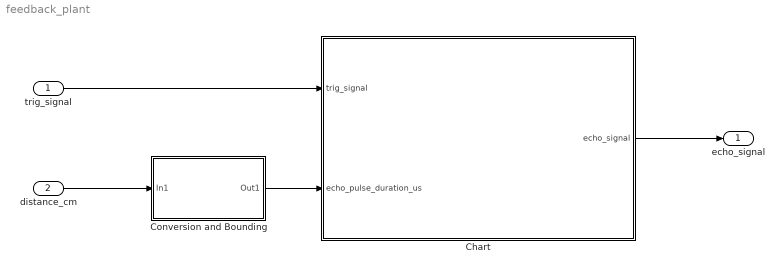
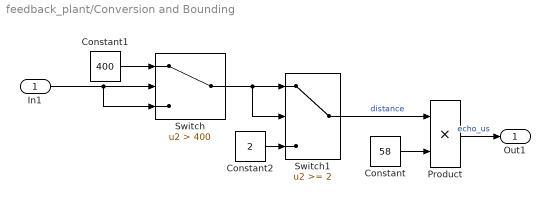
== stateflow chart feedback_plant/Chart ==
  state WAIT_TO_RISE
  state WAIT_TO_FALL
  state RESPONS_ECHO_SIGNAL
    entry:
    echo_signal = true;
    exit:
    echo_signal = false;
  (default) -> WAIT_TO_RISE
  (junction 16) -> WAIT_TO_RISE
  (junction 22) -> (junction 16)
  WAIT_TO_RISE -> WAIT_TO_FALL : [trig_signal == true]
  WAIT_TO_FALL -> (junction 22) [order 1] : [trig_signal == false]
  (junction 14) -> (junction 22)
  WAIT_TO_FALL -> RESPONS_ECHO_SIGNAL [order 2] : [after(10,usec)]
  RESPONS_ECHO_SIGNAL -> (junction 14) : after(echo_pulse_duration_us, usec)
  data: trig_signal input boolean; echo_pulse_duration_us input double; echo_signal output boolean

/*
 * Academic License - for use in teaching, academic research, and meeting
 * course requirements at degree granting institutions only.  Not for
 * government, commercial, or other organizational use.
 *
 * File: feedback_plant.c
 *
 * Code generated for Simulink model 'feedback_plant'.
 *
 * Model version                  : 10.19
 * Simulink Coder version         : 9.4 (R2020b) 29-Jul-2020
 * C/C++ source code generated on : Sat Jun 19 12:11:53 2021
 *
 * Target selection: ert.tlc
 * Embedded hardware selection: ARM Compatible->ARM Cortex-M
 * Code generation objectives: Unspecified
 * Validation result: Not run
 */

#include "feedback_plant.h"

/* Named constants for Chart: '<Root>/Chart' */
#define feedback_IN_RESPONS_ECHO_SIGNAL ((uint8_T)1U)
#define feedback_pla_IN_NO_ACTIVE_CHILD ((uint8_T)0U)
#define feedback_plant_IN_WAIT_TO_FALL ((uint8_T)2U)
#define feedback_plant_IN_WAIT_TO_RISE ((uint8_T)3U)

/*===========*
 * Constants *
 *===========*/
#define RT_PI                          3.14159265358979323846
#define RT_PIF                         3.1415927F
#define RT_LN_10                       2.30258509299404568402
#define RT_LN_10F                      2.3025851F
#define RT_LOG10E                      0.43429448190325182765
#define RT_LOG10EF                     0.43429449F
#define RT_E                           2.7182818284590452354
#define RT_EF                          2.7182817F

/*
 * UNUSED_PARAMETER(x)
 *   Used to specify that a function parameter (argument) is required but not
 *   accessed by the function body.
 */
#ifndef UNUSED_PARAMETER
#if defined(__LCC__)
#define UNUSED_PARAMETER(x)                                      /* do nothing */
#else

/*
 * This is the semi-ANSI standard way of indicating that an
 * unused function parameter is required.
 */
#define UNUSED_PARAMETER(x)            (void) (x)
#endif
#endif

/* Model step function */
void feedback_plant_step(RT_MODEL_feedback_plant_T *const feedback_plant_M,
  boolean_T feedback_plant_U_trig_signal, real_T feedback_plant_U_distance_cm,
  boolean_T *feedback_plant_Y_echo_signal)
{
  DW_feedback_plant_T *feedback_plant_DW = feedback_plant_M->dwork;
  real_T rtb_distance;

  /* Switch: '<S2>/Switch' incorporates:
   *  Constant: '<S2>/Constant1'
   *  Inport: '<Root>/distance_cm'
   */
  if (feedback_plant_U_distance_cm > 400.0) {
    rtb_distance = 400.0;
  } else {
    rtb_distance = feedback_plant_U_distance_cm;
  }

  /* End of Switch: '<S2>/Switch' */

  /* Switch: '<S2>/Switch1' incorporates:
   *  Constant: '<S2>/Constant2'
   */
  if (!(rtb_distance >= 2.0)) {
    rtb_distance = 2.0;
  }

  /* End of Switch: '<S2>/Switch1' */

  /* Chart: '<Root>/Chart' incorporates:
   *  Constant: '<S2>/Constant'
   *  Inport: '<Root>/trig_signal'
   *  Product: '<S2>/Product'
   */
  if (feedback_plant_DW->temporalCounter_i1 < MAX_uint32_T) {
    feedback_plant_DW->temporalCounter_i1++;
  }

  if (feedback_plant_DW->is_active_c3_feedback_plant == 0U) {
    feedback_plant_DW->is_active_c3_feedback_plant = 1U;
    feedback_plant_DW->is_c3_feedback_plant = feedback_plant_IN_WAIT_TO_RISE;
  } else {
    switch (feedback_plant_DW->is_c3_feedback_plant) {
     case feedback_IN_RESPONS_ECHO_SIGNAL:
      if ((uint32_T)((int32_T)feedback_plant_DW->temporalCounter_i1 * 10) >=
          (uint32_T)ceil(rtb_distance * 58.0)) {
        /* Outport: '<Root>/echo_signal' */
        *feedback_plant_Y_echo_signal = false;
        feedback_plant_DW->is_c3_feedback_plant = feedback_plant_IN_WAIT_TO_RISE;
      }
      break;

     case feedback_plant_IN_WAIT_TO_FALL:
      if (!feedback_plant_U_trig_signal) {
        feedback_plant_DW->is_c3_feedback_plant = feedback_plant_IN_WAIT_TO_RISE;
      } else {
        if (feedback_plant_DW->temporalCounter_i1 >= 1U) {
          feedback_plant_DW->is_c3_feedback_plant =
            feedback_IN_RESPONS_ECHO_SIGNAL;
          feedback_plant_DW->temporalCounter_i1 = 0U;

          /* Outport: '<Root>/echo_signal' */
          *feedback_plant_Y_echo_signal = true;
        }
      }
      break;

     default:
      /* case IN_WAIT_TO_RISE: */
      if (feedback_plant_U_trig_signal) {
        feedback_plant_DW->is_c3_feedback_plant = feedback_plant_IN_WAIT_TO_FALL;
        feedback_plant_DW->temporalCounter_i1 = 0U;
      }
      break;
    }
  }

  /* End of Chart: '<Root>/Chart' */
}
